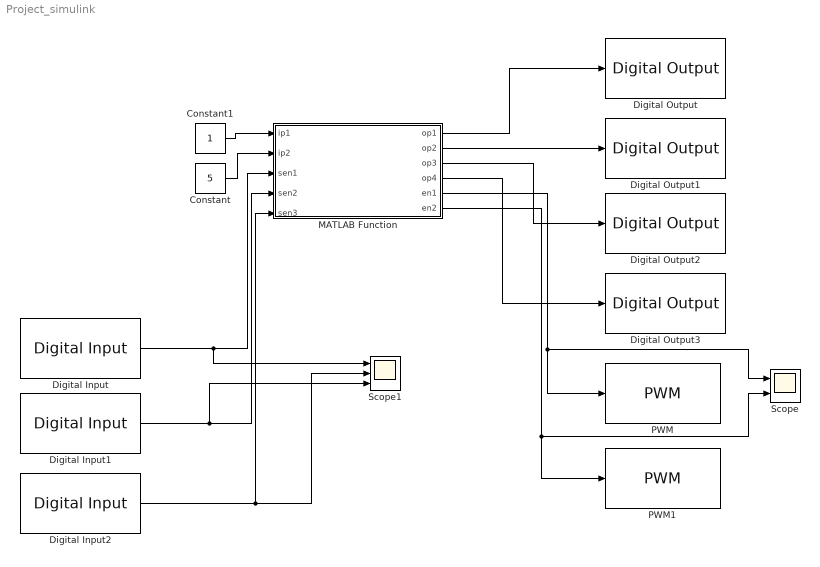
== matlab function Project_simulink/MATLAB Function ==
function [op1,op2,op3,op4,en1,en2] = fcn(ip1,ip2, sen1, sen2, sen3)
        %Manual, Forward Mode
        if (ip1 == 1 && ip2 == 1)
         op1 = 0;
         op2 = 1;
         op3 = 1;
         op4 = 0;
         en1 = 100;
         en2 = 100;
        %Manual, Backward Mode
        elseif (ip1 == 1 && ip2 == 2)
         op1 = 1;
         op2 = 0;
         op3 = 0;
         op4 = 1; 
         en1=100;
         en2=100;
        %Manual, Left Mode
        elseif (ip1 == 1 && ip2 == 3)
         op1 = 0;
         op2 = 1;
         op3 = 1;
         op4 = 0;
         en1=60;
         en2=100;
         %Manual, Right Mode
        elseif (ip1 == 1 && ip2 == 4)
         op1 = 0;
         op2 = 1;
         op3 = 1;
         op4 = 0;
         en1=100;
         en2=60;
        else
         op1 = 0;
         op2 = 0;
         op3 = 0;
         op4 = 0;
         en1 = 100;
         en2 = 100;
        end
         %LineFollower Mode
        if (ip1==2 )
            if (sen1 ==0 && sen2 == 1 && sen3 == 1)
         op1 = 0;
         op2 = 1;
         op3 = 1;
         op4 = 0;
         en1 = 100;
         en2 = 60;
            elseif (sen1 ==0 && sen2 == 0 && sen3 == 0)
         op1 = 0;
         op2 = 1;
         op3 = 1;
         op4 = 0;
         en1 = 100;
         en2 = 100;   
            elseif (sen1 ==1 && sen2 == 1 && sen3 == 0)
         op1 = 0;
         op2 = 1;
         op3 = 1;
         op4 = 0;
         en1 = 60;
         en2 = 100; 
            else 
                             op1 = 0;
         op2 = 0;
         op3 = 0;
         op4 = 0;
         en1 = 60;
         en2 = 100;               
            end
        end
end

/*
 * File: Project_simulink.c
 *
 * Code generated for Simulink model 'Project_simulink'.
 *
 * Model version                  : 1.165
 * Simulink Coder version         : 9.0 (R2018b) 24-May-2018
 * C/C++ source code generated on : Tue Feb 11 13:00:31 2020
 *
 * Target selection: ert.tlc
 * Embedded hardware selection: Atmel->AVR
 * Code generation objectives: Unspecified
 * Validation result: Not run
 */

#include "Project_simulink.h"
#include "Project_simulink_private.h"

/* Block states (default storage) */
DW_Project_simulink_T Project_simulink_DW;

/* Real-time model */
RT_MODEL_Project_simulink_T Project_simulink_M_;
RT_MODEL_Project_simulink_T *const Project_simulink_M = &Project_simulink_M_;

/* Forward declaration for local functions */
static void matlabCodegenHandle_matlabCo_e0(codertarget_arduinobase_block_T *obj);
static void matlabCodegenHandle_matla_e0pv4(codertarget_arduinobase_blo_e_T *obj);
static void Project_simu_SystemCore_release(const
  codertarget_arduinobase_int_e_T *obj);
static void Project_simul_SystemCore_delete(const
  codertarget_arduinobase_int_e_T *obj);
static void matlabCodegenHandle_matlabCodeg(codertarget_arduinobase_int_e_T *obj);
static codertarget_arduinobase_int_e_T *arduino_PWMOutput_arduino_PWMOu
  (codertarget_arduinobase_int_e_T *obj);
static void matlabCodegenHandle_matlabCo_e0(codertarget_arduinobase_block_T *obj)
{
  if (!obj->matlabCodegenIsDeleted) {
    obj->matlabCodegenIsDeleted = true;
  }
}

static void matlabCodegenHandle_matla_e0pv4(codertarget_arduinobase_blo_e_T *obj)
{
  if (!obj->matlabCodegenIsDeleted) {
    obj->matlabCodegenIsDeleted = true;
  }
}

static void Project_simu_SystemCore_release(const
  codertarget_arduinobase_int_e_T *obj)
{
  if ((obj->isInitialized == 1L) && obj->isSetupComplete) {
    MW_PWM_SetDutyCycle(obj->MW_PWM_HANDLE, 0);
  }
}

static void Project_simul_SystemCore_delete(const
  codertarget_arduinobase_int_e_T *obj)
{
  Project_simu_SystemCore_release(obj);
}

static void matlabCodegenHandle_matlabCodeg(codertarget_arduinobase_int_e_T *obj)
{
  if (!obj->matlabCodegenIsDeleted) {
    obj->matlabCodegenIsDeleted = true;
    Project_simul_SystemCore_delete(obj);
  }
}

static codertarget_arduinobase_int_e_T *arduino_PWMOutput_arduino_PWMOu
  (codertarget_arduinobase_int_e_T *obj)
{
  codertarget_arduinobase_int_e_T *b_obj;
  obj->isInitialized = 0L;
  b_obj = obj;
  obj->Hw.AvailablePwmPinNames.f1 = '2';
  obj->Hw.AvailablePwmPinNames.f2 = '3';
  obj->Hw.AvailablePwmPinNames.f3 = '4';
  obj->Hw.AvailablePwmPinNames.f4 = '5';
  obj->Hw.AvailablePwmPinNames.f5 = '6';
  obj->Hw.AvailablePwmPinNames.f6 = '7';
  obj->Hw.AvailablePwmPinNames.f7 = '8';
  obj->Hw.AvailablePwmPinNames.f8 = '9';
  obj->Hw.AvailablePwmPinNames.f9[0] = '1';
  obj->Hw.AvailablePwmPinNames.f9[1] = '0';
  obj->Hw.AvailablePwmPinNames.f10[0] = '1';
  obj->Hw.AvailablePwmPinNames.f10[1] = '1';
  obj->Hw.AvailablePwmPinNames.f11[0] = '1';
  obj->Hw.AvailablePwmPinNames.f11[1] = '2';
  obj->Hw.AvailablePwmPinNames.f12[0] = '1';
  obj->Hw.AvailablePwmPinNames.f12[1] = '3';
  obj->matlabCodegenIsDeleted = false;
  return b_obj;
}

/* Model step function */
void Project_simulink_step(void)
{
  boolean_T rtb_DigitalInput_l_0;
  boolean_T rtb_DigitalInput_d_0;
  boolean_T rtb_DigitalInput_0;
  int16_T rtb_en2;
  int16_T rtb_en1;
  int16_T rtb_op4;
  int16_T rtb_op3;
  int16_T rtb_op2;
  int16_T rtb_op1;

  /* MATLABSystem: '<S1>/Digital Input' */
  if (Project_simulink_DW.obj_lv.SampleTime !=
      Project_simulink_P.DigitalInput_SampleTime) {
    Project_simulink_DW.obj_lv.SampleTime =
      Project_simulink_P.DigitalInput_SampleTime;
  }

  rtb_DigitalInput_l_0 = readDigitalPin(3);

  /* MATLABSystem: '<S2>/Digital Input' */
  if (Project_simulink_DW.obj_l.SampleTime !=
      Project_simulink_P.DigitalInput_SampleTime_h) {
    Project_simulink_DW.obj_l.SampleTime =
      Project_simulink_P.DigitalInput_SampleTime_h;
  }

  rtb_DigitalInput_d_0 = readDigitalPin(4);

  /* MATLABSystem: '<S3>/Digital Input' */
  if (Project_simulink_DW.obj_c.SampleTime !=
      Project_simulink_P.DigitalInput_SampleTime_d) {
    Project_simulink_DW.obj_c.SampleTime =
      Project_simulink_P.DigitalInput_SampleTime_d;
  }

  rtb_DigitalInput_0 = readDigitalPin(5);

  /* MATLAB Function: '<Root>/MATLAB Function' incorporates:
   *  Constant: '<Root>/Constant'
   *  Constant: '<Root>/Constant1'
   *  MATLABSystem: '<S1>/Digital Input'
   *  MATLABSystem: '<S2>/Digital Input'
   *  MATLABSystem: '<S3>/Digital Input'
   */
  if ((Project_simulink_P.Constant1_Value == 1.0) &&
      (Project_simulink_P.Constant_Value == 1.0)) {
    rtb_op1 = 0;
    rtb_op2 = 1;
    rtb_op3 = 1;
    rtb_op4 = 0;
    rtb_en1 = 100;
    rtb_en2 = 100;
  } else if ((Project_simulink_P.Constant1_Value == 1.0) &&
             (Project_simulink_P.Constant_Value == 2.0)) {
    rtb_op1 = 1;
    rtb_op2 = 0;
    rtb_op3 = 0;
    rtb_op4 = 1;
    rtb_en1 = 100;
    rtb_en2 = 100;
  } else if ((Project_simulink_P.Constant1_Value == 1.0) &&
             (Project_simulink_P.Constant_Value == 3.0)) {
    rtb_op1 = 0;
    rtb_op2 = 1;
    rtb_op3 = 1;
    rtb_op4 = 0;
    rtb_en1 = 60;
    rtb_en2 = 100;
  } else if ((Project_simulink_P.Constant1_Value == 1.0) &&
             (Project_simulink_P.Constant_Value == 4.0)) {
    rtb_op1 = 0;
    rtb_op2 = 1;
    rtb_op3 = 1;
    rtb_op4 = 0;
    rtb_en1 = 100;
    rtb_en2 = 60;
  } else {
    rtb_op1 = 0;
    rtb_op2 = 0;
    rtb_op3 = 0;
    rtb_op4 = 0;
    rtb_en1 = 100;
    rtb_en2 = 100;
  }

  if (Project_simulink_P.Constant1_Value == 2.0) {
    if ((!rtb_DigitalInput_l_0) && rtb_DigitalInput_d_0 && rtb_DigitalInput_0) {
      rtb_op1 = 0;
      rtb_op2 = 1;
      rtb_op3 = 1;
      rtb_op4 = 0;
      rtb_en1 = 100;
      rtb_en2 = 60;
    } else if ((!rtb_DigitalInput_l_0) && (!rtb_DigitalInput_d_0) &&
               (!rtb_DigitalInput_0)) {
      rtb_op1 = 0;
      rtb_op2 = 1;
      rtb_op3 = 1;
      rtb_op4 = 0;
      rtb_en1 = 100;
      rtb_en2 = 100;
    } else if (rtb_DigitalInput_l_0 && rtb_DigitalInput_d_0 &&
               (!rtb_DigitalInput_0)) {
      rtb_op1 = 0;
      rtb_op2 = 1;
      rtb_op3 = 1;
      rtb_op4 = 0;
      rtb_en1 = 60;
      rtb_en2 = 100;
    } else {
      rtb_op1 = 0;
      rtb_op2 = 0;
      rtb_op3 = 0;
      rtb_op4 = 0;
      rtb_en1 = 60;
      rtb_en2 = 100;
    }
  }

  /* End of MATLAB Function: '<Root>/MATLAB Function' */

  /* MATLABSystem: '<S4>/Digital Output' incorporates:
   *  DataTypeConversion: '<S4>/Data Type Conversion'
   */
  writeDigitalPin(12, (uint8_T)rtb_op1);

  /* MATLABSystem: '<S5>/Digital Output' incorporates:
   *  DataTypeConversion: '<S5>/Data Type Conversion'
   */
  writeDigitalPin(13, (uint8_T)rtb_op2);

  /* MATLABSystem: '<S6>/Digital Output' incorporates:
   *  DataTypeConversion: '<S6>/Data Type Conversion'
   */
  writeDigitalPin(8, (uint8_T)rtb_op3);

  /* MATLABSystem: '<S7>/Digital Output' incorporates:
   *  DataTypeConversion: '<S7>/Data Type Conversion'
   */
  writeDigitalPin(9, (uint8_T)rtb_op4);

  /* MATLABSystem: '<Root>/PWM' */
  MW_PWM_SetDutyCycle(Project_simulink_DW.obj.MW_PWM_HANDLE, (real_T)rtb_en1);

  /* MATLABSystem: '<Root>/PWM1' */
  MW_PWM_SetDutyCycle(Project_simulink_DW.obj_h.MW_PWM_HANDLE, (real_T)rtb_en2);
}
